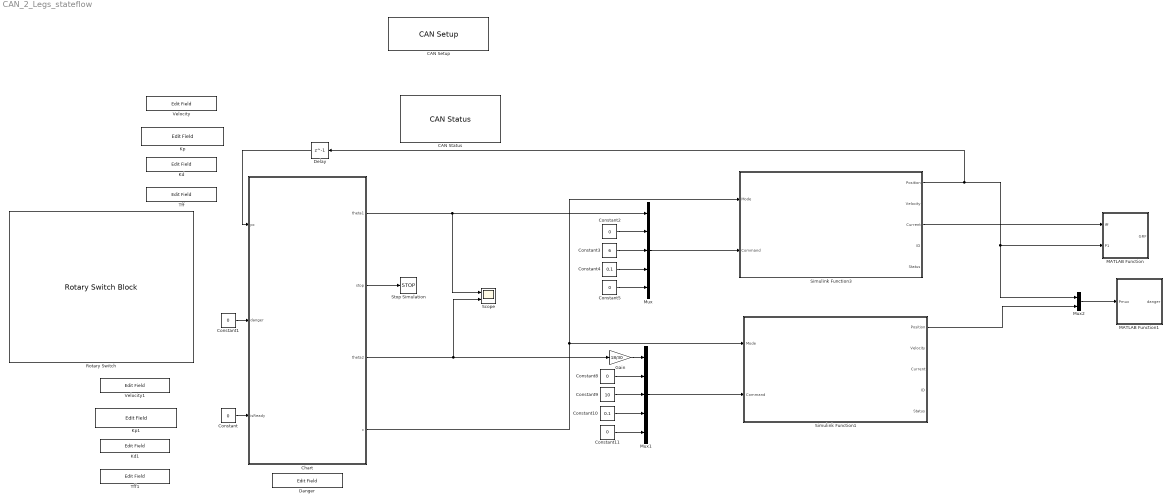
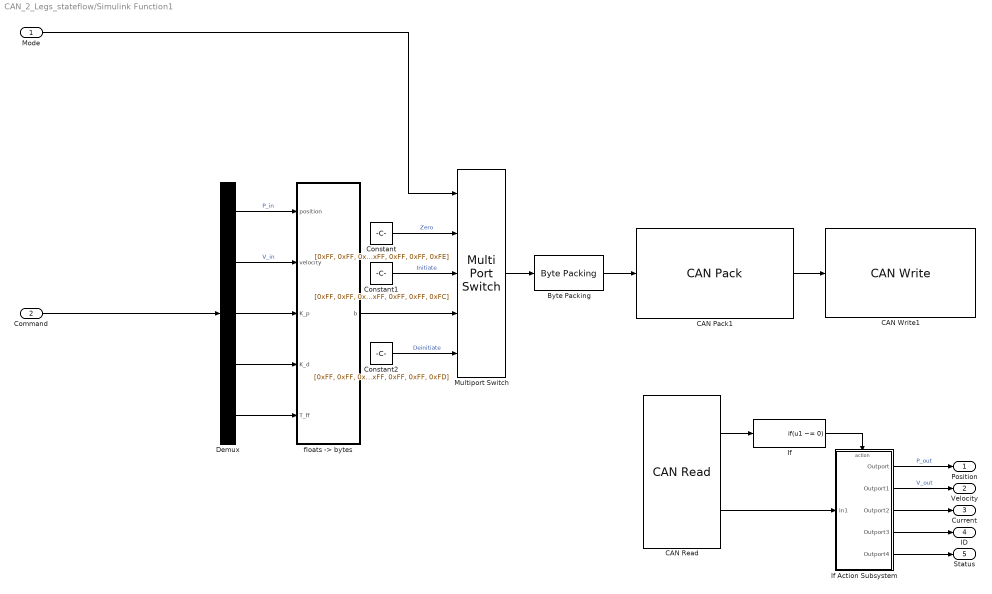
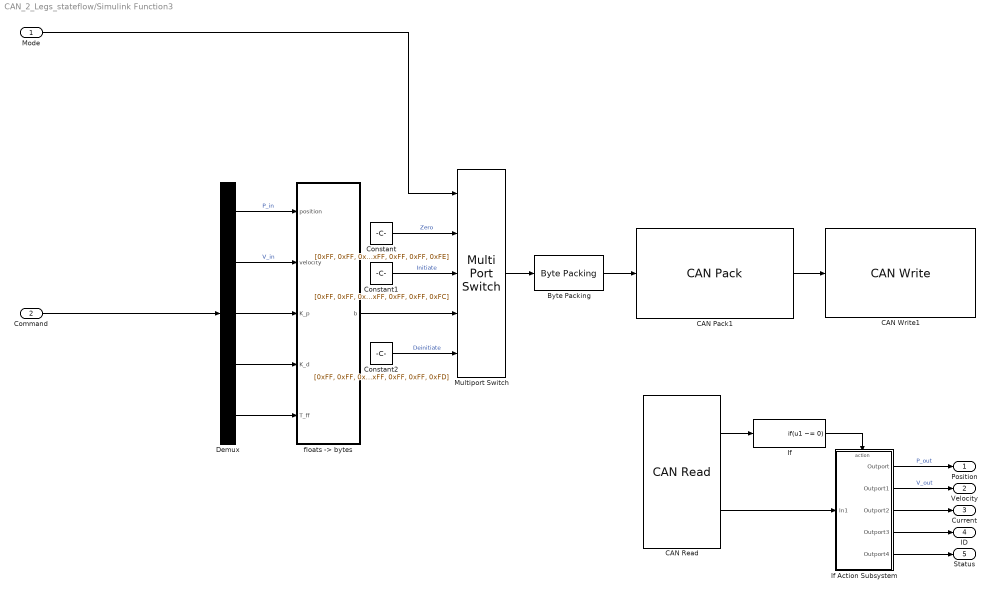
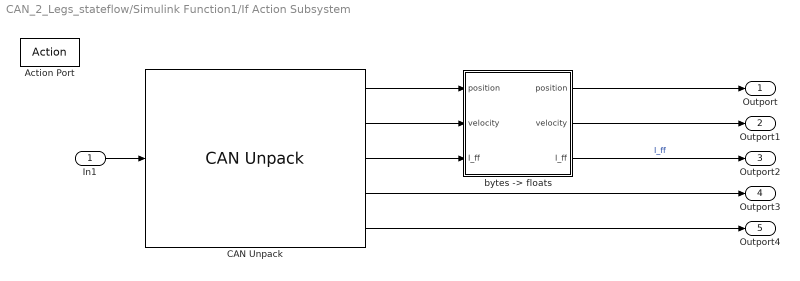
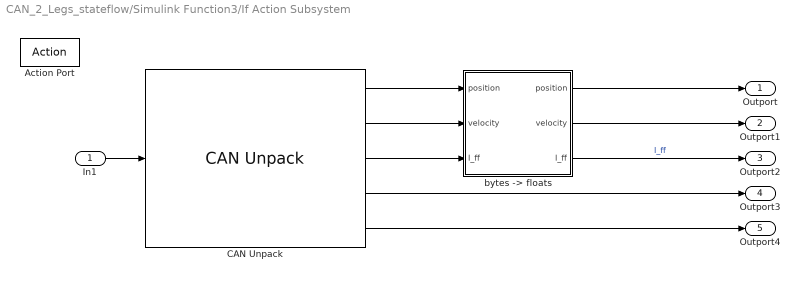
== matlab function CAN_2_Legs_stateflow/MATLAB Function ==
function GRF = isGRF(Iff, P1)
    GRF = 0;
    threshhold = 2.25;
    
    if((P1<0 && threshhold<Iff)|| (P1>0 && -threshhold>Iff))
        GRF = 1;
    end

== matlab function CAN_2_Legs_stateflow/Simulink Function3/floats -> bytes ==
function b = fcn(position, velocity, K_p, K_d, T_ff)

P_MIN  =-95.5;  % [rad]
P_MAX  = 95.5;  % [rad]
V_MIN  =-45;    % [rad/s] 30 to 45
V_MAX  = 45;    % [rad/s]
KP_MIN = 0;     % [Nm/rad]
KP_MAX = 500;   % [Nm/rad]
KD_MIN = 0;     % [Nm*s/rad
KD_MAX = 5;     % [Nm*s/rad
T_MIN  =-18;    % [Nm]
T_MAX  = 18;    % [Nm]

position = floor((max(min(position,P_MAX) ,P_MIN)  - P_MIN )*65535/(P_MAX  - P_MIN));
velocity = floor((max(min(velocity,V_MAX) ,V_MIN)  - V_MIN )*4095 /(V_MAX  - V_MIN));
K_p      = floor((max(min(K_p     ,KP_MAX),KP_MIN) - KP_MIN)*4095 /(KP_MAX - KP_MIN));
K_d      = floor((max(min(K_d     ,V_MAX) ,V_MIN)  - KD_MIN)*4095 /(KD_MAX - KD_MIN));
T_ff     = floor((max(min(T_ff    ,V_MAX) ,V_MIN)  - T_MIN )*4095 /(T_MAX  - T_MIN));

p  = dec2bin(position);
p  = [repmat('0', 1, 16-length(p)),p];
v  = dec2bin(velocity);
v  = [repmat('0', 1, 12-length(v)),v];
kp = dec2bin(K_p);
kp  = [repmat('0', 1, 12-length(kp)),kp];
kd = dec2bin(K_d);
kd  = [repmat('0', 1, 12-length(kd)),kd];
t  = dec2bin(T_ff);
t  = [repmat('0', 1, 12-length(t)),t];

B = repmat('0', 8, 8);

B(1,:) = p(1:8);
B(2,:) = p(9:16);
B(3,:) = v(1:8);
B(4,:) = [v(9:12),kp(1:4)];
B(5,:) = kp(5:12);
B(6,:) = kd(1:8);
B(7,:) = [kd(9:12),t(1:4)];
B(8,:) = t(5:12);

B  = bin2dec(B);

b = uint8(B);

== matlab function CAN_2_Legs_stateflow/MATLAB Function1 ==
function danger = isDanger(Pmux)
    % Pmux position matrix radians
    %       [p(ID1),p(ID2),p(ID3),p(IDN)]
    
    p1Max = .5; 
    p1Min = -.5;
    p2Max = .5;
    p2Min = -.5;
    
    P1 = Pmux(1:2:end);
    P2 = Pmux(2:2:end);
    
    
    danger = 0;
    if((0<sum(P1>p1Max + P1<p1Min)) || (0<sum(P2>p2Max + P2<p2Min)))
        danger = 1;
    end

== stateflow chart CAN_2_Legs_stateflow/Chart ==
  state Zero
    entry:
    c = 1;
  state Init
    entry:
    c = 2;
  state Command
    entry:
    c = 3;
    state Stand
      entry:
      to = t;
      po = theta1;
      slope = (pf - po)/tstep
      during:
      theta1 = po + slope*(t-to);
      theta2 = theta1 * -2;
    state Flight [commented out]
    state Idle
    state Sit
      entry:
      to = t;
      po = theta1;
      slope = (pf - po)/tstep;
      during:
      theta1 = po + slope*(t-to);
      theta2 = theta1 * -2;
    (default) -> Stand : {theta1 = pc; pf = -.1; tstep = 3;}
    Stand -> Idle : [(theta1 >= pf & slope>0) | (theta1 <= pf & slope<0)] {theta1 = pf; theta2 = theta1 * -2;}
    Flight -> Idle [commented out] : [GRFy > 0]
    Idle -> Flight [commented out] : [GRFy == 0]
    Idle -> Sit : after(3,sec) {pf = -1;}
    Sit -> Command : [(theta1 >= pf & slope>0) | (theta1 <= pf & slope<0)] {theta1 = pf; theta2 = theta1 * -2; done = 1;}
  state Danger
  state Deinitiate
    entry:
    c = 4;
  (default) -> Zero
  Zero -> Init : [isReady == 1] {after(15,sec);}
  Init -> Command : [isReady == 2] {after(3,sec);}
  Command -> Danger [order 2] : [danger == 1]
  Command -> Deinitiate [order 1] : [done == 1]
  (junction 36) -> Deinitiate : {stop = 1;}
  Deinitiate -> (junction 36) : after(3,sec)
  data: stop output =0; theta1 output; theta2 output; c output; done local =0; danger input; pc input; pf local; po local; slope local; tstep local; to local; isReady input

== matlab function CAN_2_Legs_stateflow/Simulink Function1/If Action
Subsystem/bytes -> floats ==
function [position, velocity, I_ff] = fcn(position, velocity, I_ff)

P_MIN  =-95.5;  % [rad]
P_MAX  = 95.5;  % [rad]
V_MIN  =-45;    % [rad/s]
V_MAX  = 45;    % [rad/s]
I_MIN  =-40;    % []
I_MAX  = 40;    % []

position = position*(P_MAX  - P_MIN)/65535+ P_MIN;
velocity = velocity*(V_MAX  - V_MIN)/4095 + V_MIN;
I_ff     = I_ff*(I_MAX  - I_MIN)/4095 + I_MIN;

== matlab function CAN_2_Legs_stateflow/Simulink Function3/If Action
Subsystem/bytes -> floats ==
function [position, velocity, I_ff] = fcn(position, velocity, I_ff)

P_MIN  =-95.5;  % [rad]
P_MAX  = 95.5;  % [rad]
V_MIN  =-45;    % [rad/s]
V_MAX  = 45;    % [rad/s]
I_MIN  =-40;    % []
I_MAX  = 40;    % []

position = position*(P_MAX  - P_MIN)/65535+ P_MIN;
velocity = velocity*(V_MAX  - V_MIN)/4095 + V_MIN;
I_ff     = I_ff*(I_MAX  - I_MIN)/4095 + I_MIN;

== matlab function CAN_2_Legs_stateflow/Simulink Function1/floats -> bytes ==
function b = fcn(position, velocity, K_p, K_d, T_ff)

P_MIN  =-95.5;  % [rad]
P_MAX  = 95.5;  % [rad]
V_MIN  =-45;    % [rad/s] 30 to 45
V_MAX  = 45;    % [rad/s]
KP_MIN = 0;     % [Nm/rad]
KP_MAX = 500;   % [Nm/rad]
KD_MIN = 0;     % [Nm*s/rad
KD_MAX = 5;     % [Nm*s/rad
T_MIN  =-18;    % [Nm]
T_MAX  = 18;    % [Nm]

position = floor((max(min(position,P_MAX) ,P_MIN)  - P_MIN )*65535/(P_MAX  - P_MIN));
velocity = floor((max(min(velocity,V_MAX) ,V_MIN)  - V_MIN )*4095 /(V_MAX  - V_MIN));
K_p      = floor((max(min(K_p     ,KP_MAX),KP_MIN) - KP_MIN)*4095 /(KP_MAX - KP_MIN));
K_d      = floor((max(min(K_d     ,V_MAX) ,V_MIN)  - KD_MIN)*4095 /(KD_MAX - KD_MIN));
T_ff     = floor((max(min(T_ff    ,V_MAX) ,V_MIN)  - T_MIN )*4095 /(T_MAX  - T_MIN));

p  = dec2bin(position);
p  = [repmat('0', 1, 16-length(p)),p];
v  = dec2bin(velocity);
v  = [repmat('0', 1, 12-length(v)),v];
kp = dec2bin(K_p);
kp  = [repmat('0', 1, 12-length(kp)),kp];
kd = dec2bin(K_d);
kd  = [repmat('0', 1, 12-length(kd)),kd];
t  = dec2bin(T_ff);
t  = [repmat('0', 1, 12-length(t)),t];

B = repmat('0', 8, 8);

B(1,:) = p(1:8);
B(2,:) = p(9:16);
B(3,:) = v(1:8);
B(4,:) = [v(9:12),kp(1:4)];
B(5,:) = kp(5:12);
B(6,:) = kd(1:8);
B(7,:) = [kd(9:12),t(1:4)];
B(8,:) = t(5:12);

B  = bin2dec(B);

b = uint8(B);

/*
 * CAN_2_Legs_stateflow.cpp
 *
 * Academic License - for use in teaching, academic research, and meeting
 * course requirements at degree granting institutions only.  Not for
 * government, commercial, or other organizational use.
 *
 * Code generation for model "CAN_2_Legs_stateflow".
 *
 * Model version              : 1.11
 * Simulink Coder version : 9.5 (R2021a) 14-Nov-2020
 * C++ source code generated on : Tue Aug 24 15:02:32 2021
 *
 * Target selection: slrealtime.tlc
 * Note: GRT includes extra infrastructure and instrumentation for prototyping
 * Embedded hardware selection: Intel->x86-64 (Linux 64)
 * Code generation objectives: Unspecified
 * Validation result: Not run
 */

#include "CAN_2_Legs_stateflow.h"
#include "CAN_2_Legs_stateflow_private.h"

/* Named constants for Chart: '<Root>/Chart' */
const uint32_T CAN_2_Legs_statef_IN_Deinitiate = 3U;
const int32_T CAN_2_Legs_stateflow_CALL_EVENT = -1;
const uint32_T CAN_2_Legs_stateflow_IN_Command = 1U;
const uint32_T CAN_2_Legs_stateflow_IN_Danger = 2U;
const uint32_T CAN_2_Legs_stateflow_IN_Idle = 1U;
const uint32_T CAN_2_Legs_stateflow_IN_Init = 4U;
const uint32_T CAN_2_Legs_stateflow_IN_Sit = 2U;
const uint32_T CAN_2_Legs_stateflow_IN_Stand = 3U;
const uint32_T CAN_2_Legs_stateflow_IN_Zero = 5U;

/* Block signals (default storage) */
B_CAN_2_Legs_stateflow_T CAN_2_Legs_stateflow_B;

/* Block states (default storage) */
DW_CAN_2_Legs_stateflow_T CAN_2_Legs_stateflow_DW;

/* Real-time model */
RT_MODEL_CAN_2_Legs_stateflow_T CAN_2_Legs_stateflow_M_ =
  RT_MODEL_CAN_2_Legs_stateflow_T();
RT_MODEL_CAN_2_Legs_stateflow_T *const CAN_2_Legs_stateflow_M =
  &CAN_2_Legs_stateflow_M_;

/* Forward declaration for local functions */
static void CAN_2_Legs_stateflow_dec2bin(real_T d, char_T s_data[], int32_T
  s_size[2]);

/*
 * Output and update for atomic system:
 *    '<S6>/bytes -> floats'
 *    '<S9>/bytes -> floats'
 */
void CAN_2_Legs_stateflo_bytesfloats(B_bytesfloats_CAN_2_Legs_stat_T *localB)
{
  real_T I_ff;
  real_T position;
  real_T velocity;
  I_ff = localB->I_ff;
  velocity = localB->velocity;
  position = localB->position;
  localB->I_ff = I_ff;
  localB->velocity = velocity;
  localB->position = position;
  localB->position = localB->position * 191.0 / 65535.0 + -95.5;
  localB->velocity = localB->velocity * 90.0 / 4095.0 + -45.0;
  localB->I_ff = localB->I_ff * 80.0 / 4095.0 + -40.0;
}

/* Function for MATLAB Function: '<S4>/floats -> bytes' */
static void CAN_2_Legs_stateflow_dec2bin(real_T d, char_T s_data[], int32_T
  s_size[2])
{
  real_T b_d;
  real_T olddi;
  int32_T idx;
  int32_T p;
  int32_T pmax;
  int32_T pmin;
  int32_T pow2p;
  char_T sfull[64];
  char_T b;
  char_T sfull_0;
  boolean_T carry;
  boolean_T exitg1;
  if (d < 0.0) {
    b_d = -d;
    for (idx = 0; idx < 64; idx++) {
      sfull[idx] = '0';
    }

    idx = 64;
    exitg1 = false;
    while ((!exitg1) && (idx > 0)) {
      olddi = b_d;
      b_d = std::floor(b_d / 2.0);
      if (2.0 * b_d < olddi) {
        sfull[idx - 1] = '1';
      }

      if (!(b_d > 0.0)) {
        exitg1 = true;
      } else {
        idx--;
      }
    }

    for (idx = 0; idx < 64; idx++) {
      sfull_0 = sfull[idx];
      b = sfull_0;
      sfull_0 = '1';
      if (b == '1') {
        sfull_0 = '0';
      }

      sfull[idx] = sfull_0;
    }

    carry = true;
    for (idx = 63; idx >= 0; idx--) {
      sfull_0 = sfull[idx];
      if (carry) {
        if (sfull_0 == '1') {
          sfull_0 = '0';
        } else {
          sfull_0 = '1';
          carry = false;
        }
      }

      sfull[idx] = sfull_0;
    }
  } else {
    b_d = d;
    for (idx = 0; idx < 64; idx++) {
      sfull[idx] = '0';
    }

    idx = 64;
    exitg1 = false;
    while ((!exitg1) && (idx > 0)) {
      olddi = b_d;
      b_d = std::floor(b_d / 2.0);
      if (2.0 * b_d < olddi) {
        sfull[idx - 1] = '1';
      }

      if (!(b_d > 0.0)) {
        exitg1 = true;
      } else {
        idx--;
      }
    }
  }

  if (d < 0.0) {
    idx = 0;
    pmax = 0;
    exitg1 = false;
    while ((!exitg1) && (pmax < 64)) {
      if (sfull[pmax] == '0') {
        idx = pmax + 1;
        exitg1 = true;
      } else {
        pmax++;
      }
    }

    if (idx == 0) {
      pmax = 55;
      idx = 8;
    } else {
      idx = 66 - idx;
      if (4 > idx) {
        idx = 4;
      }

      pmax = 31;
      pmin = 0;
      exitg1 = false;
      while ((!exitg1) && (pmax - pmin > 1)) {
        p = (pmin + pmax) >> 1;
        pow2p = 1 << p;
        if (pow2p == idx) {
          pmax = p;
          exitg1 = true;
        } else if (pow2p > idx) {
          pmax = p;
        } else {
          pmin = p;
        }
      }

      idx = 1 << pmax;
      if (64 < idx) {
        idx = 64;
      }

      pmax = 63 - idx;
    }
  } else {
    idx = 0;
    pmax = 0;
    exitg1 = false;
    while ((!exitg1) && (pmax < 64)) {
      if (sfull[pmax] == '1') {
        idx = pmax + 1;
        exitg1 = true;
      } else {
        pmax++;
      }
    }

    if (idx == 0) {
      idx = 64;
    }

    pmax = idx - 2;
    idx = 65 - idx;
  }

  if (1 >= idx) {
    s_size[0] = 1;
    s_size[1] = 1;
  } else {
    s_size[0] = 1;
    s_size[1] = idx;
  }

  for (pmin = 0; pmin < idx; pmin++) {
    s_data[pmin] = sfull[(pmax + pmin) + 1];
  }
}

real_T rt_roundd_snf(real_T u)
{
  real_T y;
  if (std::abs(u) < 4.503599627370496E+15) {
    if (u >= 0.5) {
      y = std::floor(u + 0.5);
    } else if (u > -0.5) {
      y = u * 0.0;
    } else {
      y = std::ceil(u - 0.5);
    }
  } else {
    y = u;
  }

  return y;
}

/*
 * Output and update for atomic system:
 *    '<S4>/floats -> bytes'
 *    '<S5>/floats -> bytes'
 */
void CAN_2_Legs_stateflo_floatsbytes(real_T rtu_position, real_T rtu_velocity,
  real_T rtu_K_p, real_T rtu_K_d, real_T rtu_T_ff,
  B_floatsbytes_CAN_2_Legs_stat_T *localB)
{
  real_T b_B[8];
  real_T y;
  uint64_T a;
  uint64_T p2;
  int32_T i;
  int32_T loop_ub;
  int32_T loop_ub_0;
  char_T p_data[79];
  char_T kd_data[75];
  char_T kp_data[75];
  char_T t_data[75];
  char_T v_data[75];
  char_T B[64];
  int8_T outsize_idx_1;
  uint8_T tmp;
  static const boolean_T b[128] = { false, false, false, false, false, false,
    false, false, false, true, true, true, true, true, false, false, false,
    false, false, false, false, false, false, false, false, false, false, false,
    true, true, true, true, true, false, false, false, false, false, false,
    false, false, false, false, false, false, false, false, false, false, false,
    false, false, false, false, false, false, false, false, false, false, false,
    false, false, false, false, false, false, false, false, false, false, false,
    false, false, false, false, false, false, false, false, false, false, false,
    false, false, false, false, false, false, false, false, false, false, false,
    false, false, false, false, false, false, false, false, false, false, false,
    false, false, false, false, false, false, false, false, false, false, false,
    false, false, false, false, false, false, false, false, false, false, false,
    false };

  int32_T c_size[2];
  if (rtu_position < 95.5) {
    y = rtu_position;
  } else {
    y = 95.5;
  }

  if (!(y > -95.5)) {
    y = -95.5;
  }

  CAN_2_Legs_stateflow_dec2bin(std::floor((y - -95.5) * 65535.0 / 191.0), B,
    c_size);
  outsize_idx_1 = static_cast<int8_T>(16 - c_size[1]);
  loop_ub = outsize_idx_1;
  loop_ub_0 = c_size[1];
  for (i = 0; i < loop_ub; i++) {
    p_data[i] = '0';
  }

  for (i = 0; i < loop_ub_0; i++) {
    p_data[i + loop_ub] = B[i];
  }

  if (rtu_velocity < 45.0) {
    y = rtu_velocity;
  } else {
    y = 45.0;
  }

  if (!(y > -45.0)) {
    y = -45.0;
  }

  CAN_2_Legs_stateflow_dec2bin(std::floor((y - -45.0) * 4095.0 / 90.0), B,
    c_size);
  outsize_idx_1 = static_cast<int8_T>(12 - c_size[1]);
  loop_ub = outsize_idx_1;
  loop_ub_0 = c_size[1];
  for (i = 0; i < loop_ub; i++) {
    v_data[i] = '0';
  }

  for (i = 0; i < loop_ub_0; i++) {
    v_data[i + loop_ub] = B[i];
  }

  if (rtu_K_p < 500.0) {
    y = rtu_K_p;
  } else {
    y = 500.0;
  }

  if (!(y > 0.0)) {
    y = 0.0;
  }

  CAN_2_Legs_stateflow_dec2bin(std::floor(y * 4095.0 / 500.0), B, c_size);
  outsize_idx_1 = static_cast<int8_T>(12 - c_size[1]);
  loop_ub = outsize_idx_1;
  loop_ub_0 = c_size[1];
  for (i = 0; i < loop_ub; i++) {
    kp_data[i] = '0';
  }

  for (i = 0; i < loop_ub_0; i++) {
    kp_data[i + loop_ub] = B[i];
  }

  if (rtu_K_d < 45.0) {
    y = rtu_K_d;
  } else {
    y = 45.0;
  }

  if (!(y > -45.0)) {
    y = -45.0;
  }

  CAN_2_Legs_stateflow_dec2bin(std::floor(y * 4095.0 / 5.0), B, c_size);
  outsize_idx_1 = static_cast<int8_T>(12 - c_size[1]);
  loop_ub = outsize_idx_1;
  loop_ub_0 = c_size[1];
  for (i = 0; i < loop_ub; i++) {
    kd_data[i] = '0';
  }

  for (i = 0; i < loop_ub_0; i++) {
    kd_data[i + loop_ub] = B[i];
  }

  if (rtu_T_ff < 45.0) {
    y = rtu_T_ff;
  } else {
    y = 45.0;
  }

  if (!(y > -45.0)) {
    y = -45.0;
  }

  CAN_2_Legs_stateflow_dec2bin(std::floor((y - -18.0) * 4095.0 / 36.0), B,
    c_size);
  outsize_idx_1 = static_cast<int8_T>(12 - c_size[1]);
  loop_ub = outsize_idx_1;
  loop_ub_0 = c_size[1];
  for (i = 0; i < loop_ub; i++) {
    t_data[i] = '0';
  }

  for (i = 0; i < loop_ub_0; i++) {
    t_data[i + loop_ub] = B[i];
  }

  for (i = 0; i < 64; i++) {
    B[i] = '0';
  }

  for (i = 0; i < 8; i++) {
    B[i << 3] = p_data[i];
    B[(i << 3) + 1] = p_data[i + 8];
    B[(i << 3) + 2] = v_data[i];
  }

  B[3] = v_data[8];
  B[35] = kp_data[0];
  B[11] = v_data[9];
  B[43] = kp_data[1];
  B[19] = v_data[10];
  B[51] = kp_data[2];
  B[27] = v_data[11];
  B[59] = kp_data[3];
  for (i = 0; i < 8; i++) {
    B[(i << 3) + 4] = kp_data[i + 4];
    B[(i << 3) + 5] = kd_data[i];
  }

  B[6] = kd_data[8];
  B[38] = t_data[0];
  B[14] = kd_data[9];
  B[46] = t_data[1];
  B[22] = kd_data[10];
  B[54] = t_data[2];
  B[30] = kd_data[11];
  B[62] = t_data[3];
  for (i = 0; i < 8; i++) {
    B[(i << 3) + 7] = t_data[i + 4];
  }

  for (i = 0; i < 8; i++) {
    loop_ub = 1;
    while ((loop_ub < 8) && b[static_cast<uint8_T>(B[((loop_ub - 1) << 3) + i])])
    {
      loop_ub++;
    }

    loop_ub_0 = 7;
    while ((loop_ub_0 + 1 > loop_ub) && b[static_cast<uint8_T>(B[(loop_ub_0 << 3)
            + i])]) {
      loop_ub_0--;
    }

    p2 = 1UL;
    a = 0UL;
    while ((loop_ub < loop_ub_0 + 1) && b[static_cast<uint8_T>(B[((loop_ub - 1) <<
             3) + i])]) {
      loop_ub++;
    }

    while (loop_ub_0 + 1 >= loop_ub) {
      if (B[(loop_ub_0 << 3) + i] == '1') {
        a += p2;
        p2 += p2;
      } else if (B[(loop_ub_0 << 3) + i] == '0') {
        p2 += p2;
      }

      loop_ub_0--;
    }

    b_B[i] = static_cast<real_T>(a);
  }

  for (i = 0; i < 8; i++) {
    y = rt_roundd_snf(b_B[i]);
    if (y < 256.0) {
      if (y >= 0.0) {
        tmp = static_cast<uint8_T>(y);
      } else {
        tmp = 0U;
      }
    } else {
      tmp = MAX_uint8_T;
    }

    localB->b[i] = tmp;
  }
}

/* Model step function */
void CAN_2_Legs_stateflow_step(void)
{
  int32_T i;

  /* Reset subsysRan breadcrumbs */
  srClearBC(CAN_2_Legs_stateflow_DW.IfActionSubsystem_SubsysRanBC_j);

  /* Reset subsysRan breadcrumbs */
  srClearBC(CAN_2_Legs_stateflow_DW.IfActionSubsystem_SubsysRanBC);

  /* S-Function (sg_IO602_IO691_setup_s): '<Root>/CAN Setup ' */

  /* Level2 S-Function Block: '<Root>/CAN Setup ' (sg_IO602_IO691_setup_s) */
  {
    SimStruct *rts = CAN_2_Legs_stateflow_M->childSfunctions[4];
    sfcnOutputs(rts,0);
  }

  /* Constant: '<Root>/Constant1' */
  CAN_2_Legs_stateflow_B.Constant1 = CAN_2_Legs_stateflow_cal->Constant1_Value;

  /* Delay: '<Root>/Delay' */
  CAN_2_Legs_stateflow_B.Delay = CAN_2_Legs_stateflow_DW.Delay_DSTATE;

  /* Constant: '<Root>/Constant' */
  CAN_2_Legs_stateflow_B.Constant = CAN_2_Legs_stateflow_cal->Constant_Value;

  /* Chart: '<Root>/Chart' */
  if (CAN_2_Legs_stateflow_DW.temporalCounter_i1 < 16383U) {
    CAN_2_Legs_stateflow_DW.temporalCounter_i1 = static_cast<uint16_T>
      (CAN_2_Legs_stateflow_DW.temporalCounter_i1 + 1U);
  }

  CAN_2_Legs_stateflow_DW.sfEvent = CAN_2_Legs_stateflow_CALL_EVENT;
  if (CAN_2_Legs_stateflow_DW.is_active_c7_CAN_2_Legs_statefl == 0U) {
    CAN_2_Legs_stateflow_DW.is_active_c7_CAN_2_Legs_statefl = 1U;
    CAN_2_Legs_stateflow_DW.is_c7_CAN_2_Legs_stateflow =
      CAN_2_Legs_stateflow_IN_Zero;
    CAN_2_Legs_stateflow_DW.temporalCounter_i1 = 0U;
    CAN_2_Legs_stateflow_B.c = 1.0;
  } else {
    switch (CAN_2_Legs_stateflow_DW.is_c7_CAN_2_Legs_stateflow) {
     case CAN_2_Legs_stateflow_IN_Command:
      CAN_2_Legs_stateflow_B.c = 3.0;
      if (CAN_2_Legs_stateflow_DW.done == 1.0) {
        CAN_2_Legs_stateflow_DW.is_Command = 0U;
        CAN_2_Legs_stateflow_DW.is_c7_CAN_2_Legs_stateflow =
          CAN_2_Legs_statef_IN_Deinitiate;
        CAN_2_Legs_stateflow_DW.temporalCounter_i1 = 0U;
        CAN_2_Legs_stateflow_B.c = 4.0;
      } else if (CAN_2_Legs_stateflow_B.Constant1 == 1.0) {
        CAN_2_Legs_stateflow_DW.is_Command = 0U;
        CAN_2_Legs_stateflow_DW.is_c7_CAN_2_Legs_stateflow =
          CAN_2_Legs_stateflow_IN_Danger;
      } else {
        switch (CAN_2_Legs_stateflow_DW.is_Command) {
         case CAN_2_Legs_stateflow_IN_Idle:
          if (CAN_2_Legs_stateflow_DW.temporalCounter_i1 >= 3000U) {
            CAN_2_Legs_stateflow_DW.pf = -0.1;
            CAN_2_Legs_stateflow_DW.is_Command = CAN_2_Legs_stateflow_IN_Sit;
            CAN_2_Legs_stateflow_DW.to = CAN_2_Legs_stateflow_M->Timing.t[0];
            CAN_2_Legs_stateflow_DW.po = CAN_2_Legs_stateflow_B.theta1;
            CAN_2_Legs_stateflow_DW.slope = (CAN_2_Legs_stateflow_DW.pf -
              CAN_2_Legs_stateflow_DW.po) / CAN_2_Legs_stateflow_DW.tstep;
          }
          break;

         case CAN_2_Legs_stateflow_IN_Sit:
          if (((CAN_2_Legs_stateflow_B.theta1 >= CAN_2_Legs_stateflow_DW.pf) &&
               (CAN_2_Legs_stateflow_DW.slope > 0.0)) ||
              ((CAN_2_Legs_stateflow_B.theta1 <= CAN_2_Legs_stateflow_DW.pf) &&
               (CAN_2_Legs_stateflow_DW.slope < 0.0))) {
            CAN_2_Legs_stateflow_B.theta1 = CAN_2_Legs_stateflow_DW.pf;
            CAN_2_Legs_stateflow_B.theta2 = CAN_2_Legs_stateflow_B.theta1 * -2.0;
            CAN_2_Legs_stateflow_DW.done = 1.0;
            CAN_2_Legs_stateflow_B.theta1 = CAN_2_Legs_stateflow_B.Delay;
            CAN_2_Legs_stateflow_DW.pf = -1.0;
            CAN_2_Legs_stateflow_DW.tstep = 3.0;
            CAN_2_Legs_stateflow_DW.is_Command = CAN_2_Legs_stateflow_IN_Stand;
            CAN_2_Legs_stateflow_DW.to = CAN_2_Legs_stateflow_M->Timing.t[0];
            CAN_2_Legs_stateflow_DW.po = CAN_2_Legs_stateflow_B.theta1;
            CAN_2_Legs_stateflow_DW.slope = (CAN_2_Legs_stateflow_DW.pf -
              CAN_2_Legs_stateflow_DW.po) / CAN_2_Legs_stateflow_DW.tstep;
          } else {
            CAN_2_Legs_stateflow_B.theta1 = (CAN_2_Legs_stateflow_M->Timing.t[0]
              - CAN_2_Legs_stateflow_DW.to) * CAN_2_Legs_stateflow_DW.slope +
              CAN_2_Legs_stateflow_DW.po;
            CAN_2_Legs_stateflow_B.theta2 = CAN_2_Legs_stateflow_B.theta1 * -2.0;
          }
          break;

         default:
          /* case IN_Stand: */
          if (((CAN_2_Legs_stateflow_B.theta1 >= CAN_2_Legs_stateflow_DW.pf) &&
               (CAN_2_Legs_stateflow_DW.slope > 0.0)) ||
              ((CAN_2_Legs_stateflow_B.theta1 <= CAN_2_Legs_stateflow_DW.pf) &&
               (CAN_2_Legs_stateflow_DW.slope < 0.0))) {
            CAN_2_Legs_stateflow_B.theta1 = CAN_2_Legs_stateflow_DW.pf;
            CAN_2_Legs_stateflow_B.theta2 = CAN_2_Legs_stateflow_B.theta1 * -2.0;
            CAN_2_Legs_stateflow_DW.is_Command = CAN_2_Legs_stateflow_IN_Idle;
            CAN_2_Legs_stateflow_DW.temporalCounter_i1 = 0U;
          } else {
            CAN_2_Legs_stateflow_B.theta1 = (CAN_2_Legs_stateflow_M->Timing.t[0]
              - CAN_2_Legs_stateflow_DW.to) * CAN_2_Legs_stateflow_DW.slope +
              CAN_2_Legs_stateflow_DW.po;
            CAN_2_Legs_stateflow_B.theta2 = CAN_2_Legs_stateflow_B.theta1 * -2.0;
          }
          break;
        }
      }
      break;

     case CAN_2_Legs_stateflow_IN_Danger:
      break;

     case CAN_2_Legs_statef_IN_Deinitiate:
      CAN_2_Legs_stateflow_B.c = 4.0;
      if (CAN_2_Legs_stateflow_DW.temporalCounter_i1 >= 3000U) {
        CAN_2_Legs_stateflow_B.stop = 1.0;
        CAN_2_Legs_stateflow_DW.is_c7_CAN_2_Legs_stateflow =
          CAN_2_Legs_statef_IN_Deinitiate;
        CAN_2_Legs_stateflow_DW.temporalCounter_i1 = 0U;
        CAN_2_Legs_stateflow_B.c = 4.0;
      }
      break;

     case CAN_2_Legs_stateflow_IN_Init:
      CAN_2_Legs_stateflow_B.c = 2.0;
      if (CAN_2_Legs_stateflow_B.Constant == 2.0) {
        CAN_2_Legs_stateflow_DW.is_c7_CAN_2_Legs_stateflow =
          CAN_2_Legs_stateflow_IN_Command;
        CAN_2_Legs_stateflow_B.c = 3.0;
        CAN_2_Legs_stateflow_B.theta1 = CAN_2_Legs_stateflow_B.Delay;
        CAN_2_Legs_stateflow_DW.pf = -1.0;
        CAN_2_Legs_stateflow_DW.tstep = 3.0;
        CAN_2_Legs_stateflow_DW.is_Command = CAN_2_Legs_stateflow_IN_Stand;
        CAN_2_Legs_stateflow_DW.to = CAN_2_Legs_stateflow_M->Timing.t[0];
        CAN_2_Legs_stateflow_DW.po = CAN_2_Legs_stateflow_B.theta1;
        CAN_2_Legs_stateflow_DW.slope = (CAN_2_Legs_stateflow_DW.pf -
          CAN_2_Legs_stateflow_DW.po) / CAN_2_Legs_stateflow_DW.tstep;
      }
      break;

     default:
      /* case IN_Zero: */
      CAN_2_Legs_stateflow_B.c = 1.0;
      if (CAN_2_Legs_stateflow_B.Constant == 1.0) {
        CAN_2_Legs_stateflow_DW.is_c7_CAN_2_Legs_stateflow =
          CAN_2_Legs_stateflow_IN_Init;
        CAN_2_Legs_stateflow_DW.temporalCounter_i1 = 0U;
        CAN_2_Legs_stateflow_B.c = 2.0;
      }
      break;
    }
  }

  /* End of Chart: '<Root>/Chart' */
  /* Stop: '<Root>/Stop Simulation' */
  if (CAN_2_Legs_stateflow_B.stop != 0.0) {
    rtmSetStopRequested(CAN_2_Legs_stateflow_M, 1);
  }

  /* End of Stop: '<Root>/Stop Simulation' */

  /* Constant: '<Root>/Constant2' */
  CAN_2_Legs_stateflow_B.Constant2 = CAN_2_Legs_stateflow_cal->Constant2_Value;

  /* Outputs for Atomic SubSystem: '<Root>/Simulink Function3' */
  /* S-Function (sg_IO602_IO691_read_s): '<S5>/CAN Read' */

  /* Level2 S-Function Block: '<S5>/CAN Read' (sg_IO602_IO691_read_s) */
  {
    SimStruct *rts = CAN_2_Legs_stateflow_M->childSfunctions[2];
    sfcnOutputs(rts,0);
  }

  /* If: '<S5>/If' */
  if (CAN_2_Legs_stateflow_B.CANRead_o1) {
    /* Outputs for IfAction SubSystem: '<S5>/If Action Subsystem' incorporates:
     *  ActionPort: '<S9>/Action Port'
     */
    /* S-Function (scanunpack): '<S9>/CAN Unpack' */
    {
      /* S-Function (scanunpack): '<S9>/CAN Unpack' */
      uint8_T msgReceived = 0;
      if ((6 == CAN_2_Legs_stateflow_B.CANRead_o2.Length) &&
          (CAN_2_Legs_stateflow_B.CANRead_o2.ID != INVALID_CAN_ID) ) {
        msgReceived = 1;

        {
          /* --------------- START Unpacking signal 0 ------------------
           *  startBit                = 16
           *  length                  = 16
           *  desiredSignalByteLayout = BIGENDIAN
           *  dataType                = UNSIGNED
           *  factor                  = 1.0
           *  offset                  = 0.0
           * -----------------------------------------------------------------------*/
          {
            real64_T outValue = 0;

            {
              uint16_T unpackedValue = 0;

              {
                uint16_T tempValue = (uint16_T) (0);

                {
                  tempValue = tempValue | (uint16_T)
                    (CAN_2_Legs_stateflow_B.CANRead_o2.Data[2]);
                  tempValue = tempValue | (uint16_T)((uint16_T)
                    (CAN_2_Legs_stateflow_B.CANRead_o2.Data[1]) << 8);
                }

                unpackedValue = tempValue;
              }

              outValue = (real64_T) (unpackedValue);
            }

            {
              real64_T result = (real64_T) outValue;
              CAN_2_Legs_stateflow_B.CANUnpack_o1 = result;
            }
          }

          /* --------------- START Unpacking signal 1 ------------------
           *  startBit                = 36
           *  length                  = 12
           *  desiredSignalByteLayout = BIGENDIAN
           *  dataType                = UNSIGNED
           *  factor                  = 1.0
           *  offset                  = 0.0
           * -----------------------------------------------------------------------*/
          {
            real64_T outValue = 0;

            {
              uint16_T unpackedValue = 0;

              {
                uint16_T tempValue = (uint16_T) (0);

                {
                  tempValue = tempValue | (uint16_T)((uint16_T)((uint16_T)
                    (CAN_2_Legs_stateflow_B.CANRead_o2.Data[4]) & (uint16_T)
                    (0xF0U)) >> 4);
                  tempValue = tempValue | (uint16_T)((uint16_T)
                    (CAN_2_Legs_stateflow_B.CANRead_o2.Data[3]) << 4);
                }

                unpackedValue = tempValue;
              }

              outValue = (real64_T) (unpackedValue);
            }

            {
              real64_T result = (real64_T) outValue;
              CAN_2_Legs_stateflow_B.CANUnpack_o2 = result;
            }
          }

          /* --------------- START Unpacking signal 2 ------------------
           *  startBit                = 40
           *  length                  = 12
           *  desiredSignalByteLayout = BIGENDIAN
           *  dataType                = UNSIGNED
           *  factor                  = 1.0
           *  offset                  = 0.0
           * -----------------------------------------------------------------------*/
          {
            real64_T outValue = 0;

            {
              uint16_T unpackedValue = 0;

              {
                uint16_T tempValue = (uint16_T) (0);

                {
                  tempValue = tempValue | (uint16_T)
                    (CAN_2_Legs_stateflow_B.CANRead_o2.Data[5]);
                  tempValue = tempValue | (uint16_T)((uint16_T)((uint16_T)
                    (CAN_2_Legs_stateflow_B.CANRead_o2.Data[4]) & (uint16_T)
                    (0xFU)) << 8);
                }

                unpackedValue = tempValue;
              }

              outValue = (real64_T) (unpackedValue);
            }

            {
              real64_T result = (real64_T) outValue;
              CAN_2_Legs_stateflow_B.CANUnpack_o3 = result;
            }
          }

          /* --------------- START Unpacking signal 3 ------------------
           *  startBit                = 0
           *  length                  = 8
           *  desiredSignalByteLayout = BIGENDIAN
           *  dataType                = UNSIGNED
           *  factor                  = 1.0
           *  offset                  = 0.0
           * -----------------------------------------------------------------------*/
          {
            real64_T outValue = 0;

            {
              uint8_T unpackedValue = 0;

              {
                uint8_T tempValue = (uint8_T) (0);

                {
                  tempValue = tempValue | (uint8_T)
                    (CAN_2_Legs_stateflow_B.CANRead_o2.Data[0]);
                }

                unpackedValue = tempValue;
              }

              outValue = (real64_T) (unpackedValue);
            }

            {
              real64_T result = (real64_T) outValue;
              CAN_2_Legs_stateflow_B.CANUnpack_o4 = result;
            }
          }
        }
      }

      /* Status port */
      CAN_2_Legs_stateflow_B.CANUnpack_o5 = msgReceived;
    }

    /* MATLAB Function: '<S9>/bytes -> floats' */
    CAN_2_Legs_stateflow_B.sf_bytesfloats_k.position =
      CAN_2_Legs_stateflow_B.CANUnpack_o1;
    CAN_2_Legs_stateflow_B.sf_bytesfloats_k.velocity =
      CAN_2_Legs_stateflow_B.CANUnpack_o2;
    CAN_2_Legs_stateflow_B.sf_bytesfloats_k.I_ff =
      CAN_2_Legs_stateflow_B.CANUnpack_o3;
    CAN_2_Legs_stateflo_bytesfloats(&CAN_2_Legs_stateflow_B.sf_bytesfloats_k);

    /* Update for IfAction SubSystem: '<S5>/If Action Subsystem' incorporates:
     *  ActionPort: '<S9>/Action Port'
     */
    /* Update for If: '<S5>/If' */
    srUpdateBC(CAN_2_Legs_stateflow_DW.IfActionSubsystem_SubsysRanBC);

    /* End of Update for SubSystem: '<S5>/If Action Subsystem' */
  }

  /* End of If: '<S5>/If' */
  /* MATLAB Function: '<S5>/floats -> bytes' incorporates:
   *  Constant: '<Root>/Constant3'
   *  Constant: '<Root>/Constant4'
   *  Constant: '<Root>/Constant5'
   */
  CAN_2_Legs_stateflo_floatsbytes(CAN_2_Legs_stateflow_B.theta1,
    CAN_2_Legs_stateflow_B.Constant2, CAN_2_Legs_stateflow_cal->Constant3_Value,
    CAN_2_Legs_stateflow_cal->Constant4_Value,
    CAN_2_Legs_stateflow_cal->Constant5_Value,
    &CAN_2_Legs_stateflow_B.sf_floatsbytes_o);

  /* MultiPortSwitch: '<S5>/Multiport Switch' */
  switch (static_cast<int32_T>(CAN_2_Legs_stateflow_B.c)) {
   case 1:
    /* MultiPortSwitch: '<S5>/Multiport Switch' incorporates:
     *  Constant: '<S5>/Constant'
     */
    for (i = 0; i < 8; i++) {
      CAN_2_Legs_stateflow_B.MultiportSwitch[i] =
        CAN_2_Legs_stateflow_cal->Constant_Value_i[i];
    }
    break;

   case 2:
    /* MultiPortSwitch: '<S5>/Multiport Switch' incorporates:
     *  Constant: '<S5>/Constant1'
     */
    for (i = 0; i < 8; i++) {
      CAN_2_Legs_stateflow_B.MultiportSwitch[i] =
        CAN_2_Legs_stateflow_cal->Constant1_Value_e[i];
    }
    break;

   case 3:
    /* MultiPortSwitch: '<S5>/Multiport Switch' */
    for (i = 0; i < 8; i++) {
      CAN_2_Legs_stateflow_B.MultiportSwitch[i] =
        CAN_2_Legs_stateflow_B.sf_floatsbytes_o.b[i];
    }
    break;

   default:
    /* MultiPortSwitch: '<S5>/Multiport Switch' incorporates:
     *  Constant: '<S5>/Constant2'
     */
    for (i = 0; i < 8; i++) {
      CAN_2_Legs_stateflow_B.MultiportSwitch[i] =
        CAN_2_Legs_stateflow_cal->Constant2_Value_k[i];
    }
    break;
  }

  /* End of MultiPortSwitch: '<S5>/Multiport Switch' */

  /* S-Function (slrealtimebytepacking): '<S5>/Byte Packing' */

  /* Byte Packing: <S5>/Byte Packing */
  (void)memcpy((uint8_T*)&CAN_2_Legs_stateflow_B.BytePacking[0] + 0, (uint8_T*)
               &CAN_2_Legs_stateflow_B.MultiportSwitch[0], 8);

  /* S-Function (scanpack): '<S5>/CAN Pack1' */
  /* S-Function (scanpack): '<S5>/CAN Pack1' */
  CAN_2_Legs_stateflow_B.CANPack1.ID = 1U;
  CAN_2_Legs_stateflow_B.CANPack1.Length = 8U;
  CAN_2_Legs_stateflow_B.CANPack1.Extended = 0U;
  CAN_2_Legs_stateflow_B.CANPack1.Remote = 0;
  CAN_2_Legs_stateflow_B.CANPack1.Data[0] = 0;
  CAN_2_Legs_stateflow_B.CANPack1.Data[1] = 0;
  CAN_2_Legs_stateflow_B.CANPack1.Data[2] = 0;
  CAN_2_Legs_stateflow_B.CANPack1.Data[3] = 0;
  CAN_2_Legs_stateflow_B.CANPack1.Data[4] = 0;
  CAN_2_Legs_stateflow_B.CANPack1.Data[5] = 0;
  CAN_2_Legs_stateflow_B.CANPack1.Data[6] = 0;
  CAN_2_Legs_stateflow_B.CANPack1.Data[7] = 0;

  {
    (void) std::memcpy((CAN_2_Legs_stateflow_B.CANPack1.Data),
                       &CAN_2_Legs_stateflow_B.BytePacking[0],
                       8 * sizeof(uint8_T));
  }

  /* S-Function (sg_IO602_IO691_write_s): '<S5>/CAN Write1' */

  /* Level2 S-Function Block: '<S5>/CAN Write1' (sg_IO602_IO691_write_s) */
  {
    SimStruct *rts = CAN_2_Legs_stateflow_M->childSfunctions[3];
    sfcnOutputs(rts,0);
  }

  /* Gain: '<Root>/Gain' */
  CAN_2_Legs_stateflow_B.Gain = CAN_2_Legs_stateflow_cal->Gain_Gain *
    CAN_2_Legs_stateflow_B.theta2;

  /* Constant: '<Root>/Constant8' */
  CAN_2_Legs_stateflow_B.Constant8 = CAN_2_Legs_stateflow_cal->Constant8_Value;

  /* Outputs for Atomic SubSystem: '<Root>/Simulink Function1' */
  /* S-Function (sg_IO602_IO691_read_s): '<S4>/CAN Read' */

  /* Level2 S-Function Block: '<S4>/CAN Read' (sg_IO602_IO691_read_s) */
  {
    SimStruct *rts = CAN_2_Legs_stateflow_M->childSfunctions[0];
    sfcnOutputs(rts,0);
  }

  /* If: '<S4>/If' */
  if (CAN_2_Legs_stateflow_B.CANRead_o1_e) {
    /* Outputs for IfAction SubSystem: '<S4>/If Action Subsystem' incorporates:
     *  ActionPort: '<S6>/Action Port'
     */
    /* S-Function (scanunpack): '<S6>/CAN Unpack' */
    {
      /* S-Function (scanunpack): '<S6>/CAN Unpack' */
      uint8_T msgReceived = 0;
      if ((6 == CAN_2_Legs_stateflow_B.CANRead_o2_i.Length) &&
          (CAN_2_Legs_stateflow_B.CANRead_o2_i.ID != INVALID_CAN_ID) ) {
        msgReceived = 1;

        {
          /* --------------- START Unpacking signal 0 ------------------
           *  startBit                = 16
           *  length                  = 16
           *  desiredSignalByteLayout = BIGENDIAN
           *  dataType                = UNSIGNED
           *  factor                  = 1.0
           *  offset                  = 0.0
           * -----------------------------------------------------------------------*/
          {
            real64_T outValue = 0;

            {
              uint16_T unpackedValue = 0;

              {
                uint16_T tempValue = (uint16_T) (0);

                {
                  tempValue = tempValue | (uint16_T)
                    (CAN_2_Legs_stateflow_B.CANRead_o2_i.Data[2]);
                  tempValue = tempValue | (uint16_T)((uint16_T)
                    (CAN_2_Legs_stateflow_B.CANRead_o2_i.Data[1]) << 8);
                }

                unpackedValue = tempValue;
              }

              outValue = (real64_T) (unpackedValue);
            }

            {
              real64_T result = (real64_T) outValue;
              CAN_2_Legs_stateflow_B.CANUnpack_o1_o = result;
            }
          }

          /* --------------- START Unpacking signal 1 ------------------
           *  startBit                = 36
           *  length                  = 12
           *  desiredSignalByteLayout = BIGENDIAN
           *  dataType                = UNSIGNED
           *  factor                  = 1.0
           *  offset                  = 0.0
           * -----------------------------------------------------------------------*/
          {
            real64_T outValue = 0;

            {
              uint16_T unpackedValue = 0;

              {
                uint16_T tempValue = (uint16_T) (0);

                {
                  tempValue = tempValue | (uint16_T)((uint16_T)((uint16_T)
                    (CAN_2_Legs_stateflow_B.CANRead_o2_i.Data[4]) & (uint16_T)
                    (0xF0U)) >> 4);
                  tempValue = tempValue | (uint16_T)((uint16_T)
                    (CAN_2_Legs_stateflow_B.CANRead_o2_i.Data[3]) << 4);
                }

                unpackedValue = tempValue;
              }

              outValue = (real64_T) (unpackedValue);
            }

            {
              real64_T result = (real64_T) outValue;
              CAN_2_Legs_stateflow_B.CANUnpack_o2_m = result;
            }
          }

          /* --------------- START Unpacking signal 2 ------------------
           *  startBit                = 40
           *  length                  = 12
           *  desiredSignalByteLayout = BIGENDIAN
           *  dataType                = UNSIGNED
           *  factor                  = 1.0
           *  offset                  = 0.0
           * -----------------------------------------------------------------------*/
          {
            real64_T outValue = 0;

            {
              uint16_T unpackedValue = 0;

              {
                uint16_T tempValue = (uint16_T) (0);

                {
                  tempValue = tempValue | (uint16_T)
                    (CAN_2_Legs_stateflow_B.CANRead_o2_i.Data[5]);
                  tempValue = tempValue | (uint16_T)((uint16_T)((uint16_T)
                    (CAN_2_Legs_stateflow_B.CANRead_o2_i.Data[4]) & (uint16_T)
                    (0xFU)) << 8);
                }

                unpackedValue = tempValue;
              }

              outValue = (real64_T) (unpackedValue);
            }

            {
              real64_T result = (real64_T) outValue;
              CAN_2_Legs_stateflow_B.CANUnpack_o3_o = result;
            }
          }

          /* --------------- START Unpacking signal 3 ------------------
           *  startBit                = 0
           *  length                  = 8
           *  desiredSignalByteLayout = BIGENDIAN
           *  dataType                = UNSIGNED
           *  factor                  = 1.0
           *  offset                  = 0.0
           * -----------------------------------------------------------------------*/
          {
            real64_T outValue = 0;

            {
              uint8_T unpackedValue = 0;

              {
                uint8_T tempValue = (uint8_T) (0);

                {
                  tempValue = tempValue | (uint8_T)
                    (CAN_2_Legs_stateflow_B.CANRead_o2_i.Data[0]);
                }

                unpackedValue = tempValue;
              }

              outValue = (real64_T) (unpackedValue);
            }

            {
              real64_T result = (real64_T) outValue;
              CAN_2_Legs_stateflow_B.CANUnpack_o4_f = result;
            }
          }
        }
      }

      /* Status port */
      CAN_2_Legs_stateflow_B.CANUnpack_o5_m = msgReceived;
    }

    /* MATLAB Function: '<S6>/bytes -> floats' */
    CAN_2_Legs_stateflow_B.sf_bytesfloats.position =
      CAN_2_Legs_stateflow_B.CANUnpack_o1_o;
    CAN_2_Legs_stateflow_B.sf_bytesfloats.velocity =
      CAN_2_Legs_stateflow_B.CANUnpack_o2_m;
    CAN_2_Legs_stateflow_B.sf_bytesfloats.I_ff =
      CAN_2_Legs_stateflow_B.CANUnpack_o3_o;
    CAN_2_Legs_stateflo_bytesfloats(&CAN_2_Legs_stateflow_B.sf_bytesfloats);

    /* Update for IfAction SubSystem: '<S4>/If Action Subsystem' incorporates:
     *  ActionPort: '<S6>/Action Port'
     */
    /* Update for If: '<S4>/If' */
    srUpdateBC(CAN_2_Legs_stateflow_DW.IfActionSubsystem_SubsysRanBC_j);

    /* End of Update for SubSystem: '<S4>/If Action Subsystem' */
  }

  /* End of If: '<S4>/If' */
  /* MATLAB Function: '<S4>/floats -> bytes' incorporates:
   *  Constant: '<Root>/Constant10'
   *  Constant: '<Root>/Constant11'
   *  Constant: '<Root>/Constant9'
   */
  CAN_2_Legs_stateflo_floatsbytes(CAN_2_Legs_stateflow_B.Gain,
    CAN_2_Legs_stateflow_B.Constant8, CAN_2_Legs_stateflow_cal->Constant9_Value,
    CAN_2_Legs_stateflow_cal->Constant10_Value,
    CAN_2_Legs_stateflow_cal->Constant11_Value,
    &CAN_2_Legs_stateflow_B.sf_floatsbytes);

  /* MultiPortSwitch: '<S4>/Multiport Switch' */
  switch (static_cast<int32_T>(CAN_2_Legs_stateflow_B.c)) {
   case 1:
    /* MultiPortSwitch: '<S4>/Multiport Switch' incorporates:
     *  Constant: '<S4>/Constant'
     */
    for (i = 0; i < 8; i++) {
      CAN_2_Legs_stateflow_B.MultiportSwitch_f[i] =
        CAN_2_Legs_stateflow_cal->Constant_Value_l[i];
    }
    break;

   case 2:
    /* MultiPortSwitch: '<S4>/Multiport Switch' incorporates:
     *  Constant: '<S4>/Constant1'
     */
    for (i = 0; i < 8; i++) {
      CAN_2_Legs_stateflow_B.MultiportSwitch_f[i] =
        CAN_2_Legs_stateflow_cal->Constant1_Value_m[i];
    }
    break;

   case 3:
    /* MultiPortSwitch: '<S4>/Multiport Switch' */
    for (i = 0; i < 8; i++) {
      CAN_2_Legs_stateflow_B.MultiportSwitch_f[i] =
        CAN_2_Legs_stateflow_B.sf_floatsbytes.b[i];
    }
    break;

   default:
    /* MultiPortSwitch: '<S4>/Multiport Switch' incorporates:
     *  Constant: '<S4>/Constant2'
     */
    for (i = 0; i < 8; i++) {
      CAN_2_Legs_stateflow_B.MultiportSwitch_f[i] =
        CAN_2_Legs_stateflow_cal->Constant2_Value_g[i];
    }
    break;
  }

  /* End of MultiPortSwitch: '<S4>/Multiport Switch' */

  /* S-Function (slrealtimebytepacking): '<S4>/Byte Packing' */

  /* Byte Packing: <S4>/Byte Packing */
  (void)memcpy((uint8_T*)&CAN_2_Legs_stateflow_B.BytePacking_o[0] + 0, (uint8_T*)
               &CAN_2_Legs_stateflow_B.MultiportSwitch_f[0], 8);

  /* S-Function (scanpack): '<S4>/CAN Pack1' */
  /* S-Function (scanpack): '<S4>/CAN Pack1' */
  CAN_2_Legs_stateflow_B.CANPack1_i.ID = 2U;
  CAN_2_Legs_stateflow_B.CANPack1_i.Length = 8U;
  CAN_2_Legs_stateflow_B.CANPack1_i.Extended = 0U;
  CAN_2_Legs_stateflow_B.CANPack1_i.Remote = 0;
  CAN_2_Legs_stateflow_B.CANPack1_i.Data[0] = 0;
  CAN_2_Legs_stateflow_B.CANPack1_i.Data[1] = 0;
  CAN_2_Legs_stateflow_B.CANPack1_i.Data[2] = 0;
  CAN_2_Legs_stateflow_B.CANPack1_i.Data[3] = 0;
  CAN_2_Legs_stateflow_B.CANPack1_i.Data[4] = 0;
  CAN_2_Legs_stateflow_B.CANPack1_i.Data[5] = 0;
  CAN_2_Legs_stateflow_B.CANPack1_i.Data[6] = 0;
  CAN_2_Legs_stateflow_B.CANPack1_i.Data[7] = 0;

  {
    (void) std::memcpy((CAN_2_Legs_stateflow_B.CANPack1_i.Data),
                       &CAN_2_Legs_stateflow_B.BytePacking_o[0],
                       8 * sizeof(uint8_T));
  }

  /* S-Function (sg_IO602_IO691_write_s): '<S4>/CAN Write1' */

  /* Level2 S-Function Block: '<S4>/CAN Write1' (sg_IO602_IO691_write_s) */
  {
    SimStruct *rts = CAN_2_Legs_stateflow_M->childSfunctions[1];
    sfcnOutputs(rts,0);
  }

  /* SignalConversion generated from: '<S3>/ SFunction ' incorporates:
   *  MATLAB Function: '<Root>/MATLAB Function1'
   */
  CAN_2_Legs_stateflow_B.TmpSignalConversionAtSFunctionI[0] =
    CAN_2_Legs_stateflow_B.sf_bytesfloats_k.position;
  CAN_2_Legs_stateflow_B.TmpSignalConversionAtSFunctionI[1] =
    CAN_2_Legs_stateflow_B.sf_bytesfloats.position;

  /* MATLAB Function: '<Root>/MATLAB Function1' */
  CAN_2_Legs_stateflow_B.danger = 0.0;

  /* MATLAB Function: '<Root>/MATLAB Function' */
  CAN_2_Legs_stateflow_B.GRF = 0.0;
  if (((CAN_2_Legs_stateflow_B.sf_bytesfloats_k.position < 0.0) && (2.25 <
        CAN_2_Legs_stateflow_B.sf_bytesfloats_k.I_ff)) ||
      ((CAN_2_Legs_stateflow_B.sf_bytesfloats_k.position > 0.0) && (-2.25 >
        CAN_2_Legs_stateflow_B.sf_bytesfloats_k.I_ff))) {
    CAN_2_Legs_stateflow_B.GRF = 1.0;
  }

  /* End of MATLAB Function: '<Root>/MATLAB Function' */
  /* S-Function (sg_IO602_IO691_status_s): '<Root>/CAN Status' */

  /* Level2 S-Function Block: '<Root>/CAN Status' (sg_IO602_IO691_status_s) */
  {
    SimStruct *rts = CAN_2_Legs_stateflow_M->childSfunctions[5];
    sfcnOutputs(rts,0);
  }

  /* Update for Delay: '<Root>/Delay' */
  CAN_2_Legs_stateflow_DW.Delay_DSTATE =
    CAN_2_Legs_stateflow_B.sf_bytesfloats_k.position;

  /* Update absolute time for base rate */
  /* The "clockTick0" counts the number of times the code of this task has
   * been executed. The absolute time is the multiplication of "clockTick0"
   * and "Timing.stepSize0". Size of "clockTick0" ensures timer will not
   * overflow during the application lifespan selected.
   * Timer of this task consists of two 32 bit unsigned integers.
   * The two integers represent the low bits Timing.clockTick0 and the high bits
   * Timing.clockTickH0. When the low bit overflows to 0, the high bits increment.
   */
  if (!(++CAN_2_Legs_stateflow_M->Timing.clockTick0)) {
    ++CAN_2_Legs_stateflow_M->Timing.clockTickH0;
  }

  CAN_2_Legs_stateflow_M->Timing.t[0] =
    CAN_2_Legs_stateflow_M->Timing.clockTick0 *
    CAN_2_Legs_stateflow_M->Timing.stepSize0 +
    CAN_2_Legs_stateflow_M->Timing.clockTickH0 *
    CAN_2_Legs_stateflow_M->Timing.stepSize0 * 4294967296.0;
}
